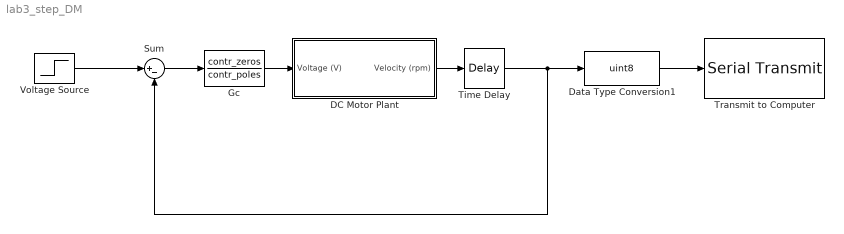
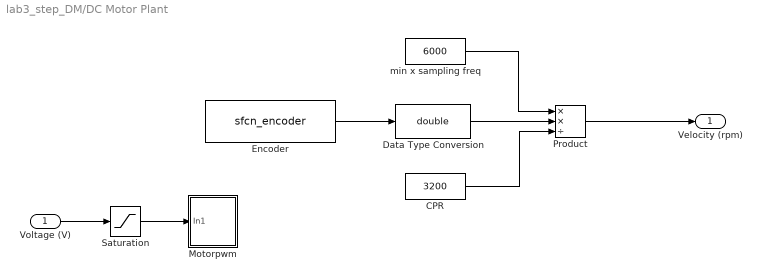
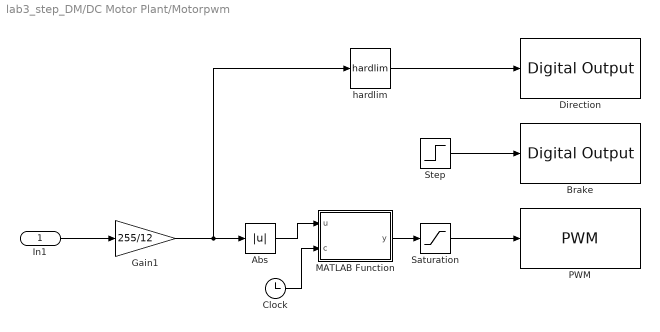
== matlab function lab3_step_DM/DC Motor Plant/Motorpwm/MATLAB Function ==
function y = fcn(u,c)
%#codegen
if c<10
    y = u;
else
    y=0;
end

/*
 * Academic License - for use in teaching, academic research, and meeting
 * course requirements at degree granting institutions only.  Not for
 * government, commercial, or other organizational use.
 *
 * File: lab3_step_DM.c
 *
 * Code generated for Simulink model 'lab3_step_DM'.
 *
 * Model version                  : 1.3
 * Simulink Coder version         : 8.11 (R2016b) 25-Aug-2016
 * C/C++ source code generated on : Sat Apr 27 10:52:02 2019
 *
 * Target selection: ert.tlc
 * Embedded hardware selection: Atmel->AVR
 * Code generation objectives: Unspecified
 * Validation result: Not run
 */

#include "lab3_step_DM.h"
#include "lab3_step_DM_private.h"
#define lab3_step_DM_PinNumber         (8.0)
#define lab3_step_DM_PinNumber_k       (13.0)

/* Block signals (auto storage) */
B_lab3_step_DM_T lab3_step_DM_B;

/* Continuous states */
X_lab3_step_DM_T lab3_step_DM_X;

/* Block states (auto storage) */
DW_lab3_step_DM_T lab3_step_DM_DW;

/* Real-time model */
RT_MODEL_lab3_step_DM_T lab3_step_DM_M_;
RT_MODEL_lab3_step_DM_T *const lab3_step_DM_M = &lab3_step_DM_M_;

/*
 * Time delay interpolation routine
 *
 * The linear interpolation is performed using the formula:
 *
 *          (t2 - tMinusDelay)         (tMinusDelay - t1)
 * u(t)  =  ----------------- * u1  +  ------------------- * u2
 *              (t2 - t1)                  (t2 - t1)
 */
real_T rt_TDelayInterpolate(
  real_T tMinusDelay,                  /* tMinusDelay = currentSimTime - delay */
  real_T tStart,
  real_T *tBuf,
  real_T *uBuf,
  int_T bufSz,
  int_T *lastIdx,
  int_T oldestIdx,
  int_T newIdx,
  real_T initOutput,
  boolean_T discrete,
  boolean_T minorStepAndTAtLastMajorOutput)
{
  int_T i;
  real_T yout, t1, t2, u1, u2;

  /*
   * If there is only one data point in the buffer, this data point must be
   * the t= 0 and tMinusDelay > t0, it ask for something unknown. The best
   * guess if initial output as well
   */
  if ((newIdx == 0) && (oldestIdx ==0 ) && (tMinusDelay > tStart))
    return initOutput;

  /*
   * If tMinusDelay is less than zero, should output initial value
   */
  if (tMinusDelay <= tStart)
    return initOutput;

  /* For fixed buffer extrapolation:
   * if tMinusDelay is small than the time at oldestIdx, if discrete, output
   * tailptr value,  else use tailptr and tailptr+1 value to extrapolate
   * It is also for fixed buffer. Note: The same condition can happen for transport delay block where
   * use tStart and and t[tail] other than using t[tail] and t[tail+1].
   * See below
   */
  if ((tMinusDelay <= tBuf[oldestIdx] ) ) {
    if (discrete) {
      return(uBuf[oldestIdx]);
    } else {
      int_T tempIdx= oldestIdx + 1;
      if (oldestIdx == bufSz-1)
        tempIdx = 0;
      t1= tBuf[oldestIdx];
      t2= tBuf[tempIdx];
      u1= uBuf[oldestIdx];
      u2= uBuf[tempIdx];
      if (t2 == t1) {
        if (tMinusDelay >= t2) {
          yout = u2;
        } else {
          yout = u1;
        }
      } else {
        real_T f1 = (t2-tMinusDelay) / (t2-t1);
        real_T f2 = 1.0 - f1;

        /*
         * Use Lagrange's interpolation formula.  Exact outputs at t1, t2.
         */
        yout = f1*u1 + f2*u2;
      }

      return yout;
    }
  }

  /*
   * When block does not have direct feedthrough, we use the table of
   * values to extrapolate off the end of the table for delays that are less
   * than 0 (less then step size).  This is not completely accurate.  The
   * chain of events is as follows for a given time t.  Major output - look
   * in table.  Update - add entry to table.  Now, if we call the output at
   * time t again, there is a new entry in the table. For very small delays,
   * this means that we will have a different answer from the previous call
   * to the output fcn at the same time t.  The following code prevents this
   * from happening.
   */
  if (minorStepAndTAtLastMajorOutput) {
    /* pretend that the new entry has not been added to table */
    if (newIdx != 0) {
      if (*lastIdx == newIdx) {
        (*lastIdx)--;
      }

      newIdx--;
    } else {
      if (*lastIdx == newIdx) {
        *lastIdx = bufSz-1;
      }

      newIdx = bufSz - 1;
    }
  }

  i = *lastIdx;
  if (tBuf[i] < tMinusDelay) {
    /* Look forward starting at last index */
    while (tBuf[i] < tMinusDelay) {
      /* May occur if the delay is less than step-size - extrapolate */
      if (i == newIdx)
        break;
      i = ( i < (bufSz-1) ) ? (i+1) : 0;/* move through buffer */
    }
  } else {
    /*
     * Look backwards starting at last index which can happen when the
     * delay time increases.
     */
    while (tBuf[i] >= tMinusDelay) {
      /*
       * Due to the entry condition at top of function, we
       * should never hit the end.
       */
      i = (i > 0) ? i-1 : (bufSz-1);   /* move through buffer */
    }

    i = ( i < (bufSz-1) ) ? (i+1) : 0;
  }

  *lastIdx = i;
  if (discrete) {
    /*
     * tempEps = 128 * eps;
     * localEps = max(tempEps, tempEps*fabs(tBuf[i]))/2;
     */
    double tempEps = (DBL_EPSILON) * 128.0;
    double localEps = tempEps * fabs(tBuf[i]);
    if (tempEps > localEps) {
      localEps = tempEps;
    }

    localEps = localEps / 2.0;
    if (tMinusDelay >= (tBuf[i] - localEps)) {
      yout = uBuf[i];
    } else {
      if (i == 0) {
        yout = uBuf[bufSz-1];
      } else {
        yout = uBuf[i-1];
      }
    }
  } else {
    if (i == 0) {
      t1 = tBuf[bufSz-1];
      u1 = uBuf[bufSz-1];
    } else {
      t1 = tBuf[i-1];
      u1 = uBuf[i-1];
    }

    t2 = tBuf[i];
    u2 = uBuf[i];
    if (t2 == t1) {
      if (tMinusDelay >= t2) {
        yout = u2;
      } else {
        yout = u1;
      }
    } else {
      real_T f1 = (t2-tMinusDelay) / (t2-t1);
      real_T f2 = 1.0 - f1;

      /*
       * Use Lagrange's interpolation formula.  Exact outputs at t1, t2.
       */
      yout = f1*u1 + f2*u2;
    }
  }

  return(yout);
}

/*
 * This function updates continuous states using the ODE3 fixed-step
 * solver algorithm
 */
static void rt_ertODEUpdateContinuousStates(RTWSolverInfo *si )
{
  /* Solver Matrices */
  static const real_T rt_ODE3_A[3] = {
    1.0/2.0, 3.0/4.0, 1.0
  };

  static const real_T rt_ODE3_B[3][3] = {
    { 1.0/2.0, 0.0, 0.0 },

    { 0.0, 3.0/4.0, 0.0 },

    { 2.0/9.0, 1.0/3.0, 4.0/9.0 }
  };

  time_T t = rtsiGetT(si);
  time_T tnew = rtsiGetSolverStopTime(si);
  time_T h = rtsiGetStepSize(si);
  real_T *x = rtsiGetContStates(si);
  ODE3_IntgData *id = (ODE3_IntgData *)rtsiGetSolverData(si);
  real_T *y = id->y;
  real_T *f0 = id->f[0];
  real_T *f1 = id->f[1];
  real_T *f2 = id->f[2];
  real_T hB[3];
  int_T i;
  int_T nXc = 1;
  rtsiSetSimTimeStep(si,MINOR_TIME_STEP);

  /* Save the state values at time t in y, we'll use x as ynew. */
  (void) memcpy(y, x,
                (uint_T)nXc*sizeof(real_T));

  /* Assumes that rtsiSetT and ModelOutputs are up-to-date */
  /* f0 = f(t,y) */
  rtsiSetdX(si, f0);
  lab3_step_DM_derivatives();

  /* f(:,2) = feval(odefile, t + hA(1), y + f*hB(:,1), args(:)(*)); */
  hB[0] = h * rt_ODE3_B[0][0];
  for (i = 0; i < nXc; i++) {
    x[i] = y[i] + (f0[i]*hB[0]);
  }

  rtsiSetT(si, t + h*rt_ODE3_A[0]);
  rtsiSetdX(si, f1);
  lab3_step_DM_step();
  lab3_step_DM_derivatives();

  /* f(:,3) = feval(odefile, t + hA(2), y + f*hB(:,2), args(:)(*)); */
  for (i = 0; i <= 1; i++) {
    hB[i] = h * rt_ODE3_B[1][i];
  }

  for (i = 0; i < nXc; i++) {
    x[i] = y[i] + (f0[i]*hB[0] + f1[i]*hB[1]);
  }

  rtsiSetT(si, t + h*rt_ODE3_A[1]);
  rtsiSetdX(si, f2);
  lab3_step_DM_step();
  lab3_step_DM_derivatives();

  /* tnew = t + hA(3);
     ynew = y + f*hB(:,3); */
  for (i = 0; i <= 2; i++) {
    hB[i] = h * rt_ODE3_B[2][i];
  }

  for (i = 0; i < nXc; i++) {
    x[i] = y[i] + (f0[i]*hB[0] + f1[i]*hB[1] + f2[i]*hB[2]);
  }

  rtsiSetT(si, tnew);
  rtsiSetSimTimeStep(si,MAJOR_TIME_STEP);
}

real_T rt_roundd_snf(real_T u)
{
  real_T y;
  if (fabs(u) < 4.503599627370496E+15) {
    if (u >= 0.5) {
      y = floor(u + 0.5);
    } else if (u > -0.5) {
      y = u * 0.0;
    } else {
      y = ceil(u - 0.5);
    }
  } else {
    y = u;
  }

  return y;
}

/* Model step function */
void lab3_step_DM_step(void)
{
  /* local block i/o variables */
  real_T rtb_Gain1;
  int16_T k;
  uint8_T dataIn;
  real_T rtb_y;
  boolean_T exitg1;
  if (rtmIsMajorTimeStep(lab3_step_DM_M)) {
    /* set solver stop time */
    rtsiSetSolverStopTime(&lab3_step_DM_M->solverInfo,
                          ((lab3_step_DM_M->Timing.clockTick0+1)*
      lab3_step_DM_M->Timing.stepSize0));
  }                                    /* end MajorTimeStep */

  /* Update absolute time of base rate at minor time step */
  if (rtmIsMinorTimeStep(lab3_step_DM_M)) {
    lab3_step_DM_M->Timing.t[0] = rtsiGetT(&lab3_step_DM_M->solverInfo);
  }

  /* TransportDelay: '<Root>/Time Delay' */
  {
    real_T **uBuffer = (real_T**)&lab3_step_DM_DW.TimeDelay_PWORK.TUbufferPtrs[0];
    real_T **tBuffer = (real_T**)&lab3_step_DM_DW.TimeDelay_PWORK.TUbufferPtrs[1];
    real_T simTime = lab3_step_DM_M->Timing.t[0];
    real_T tMinusDelay = simTime - lab3_step_DM_P.TimeDelay_Delay;
    rtb_Gain1 = rt_TDelayInterpolate(
      tMinusDelay,
      0.0,
      *tBuffer,
      *uBuffer,
      lab3_step_DM_DW.TimeDelay_IWORK.CircularBufSize,
      &lab3_step_DM_DW.TimeDelay_IWORK.Last,
      lab3_step_DM_DW.TimeDelay_IWORK.Tail,
      lab3_step_DM_DW.TimeDelay_IWORK.Head,
      lab3_step_DM_P.TimeDelay_InitOutput,
      1,
      0);
  }

  /* Start for MATLABSystem: '<Root>/Transmit to Computer' incorporates:
   *  MATLABSystem: '<Root>/Transmit to Computer'
   */
  k = 0;
  exitg1 = false;
  while ((!exitg1) && (k < 8)) {
    if (lab3_step_DM_DW.obj.inputVarSize.f1[k] != 1UL) {
      for (k = 0; k < 8; k++) {
        lab3_step_DM_DW.obj.inputVarSize.f1[k] = 1UL;
      }

      exitg1 = true;
    } else {
      k++;
    }
  }

  /* DataTypeConversion: '<Root>/Data Type Conversion1' */
  rtb_y = rt_roundd_snf(rtb_Gain1);
  if (rtIsNaN(rtb_y) || rtIsInf(rtb_y)) {
    rtb_y = 0.0;
  } else {
    rtb_y = fmod(rtb_y, 256.0);
  }

  /* Start for MATLABSystem: '<Root>/Transmit to Computer' incorporates:
   *  DataTypeConversion: '<Root>/Data Type Conversion1'
   *  MATLABSystem: '<Root>/Transmit to Computer'
   */
  dataIn = (uint8_T)(rtb_y < 0.0 ? (int16_T)(uint8_T)-(int8_T)(uint8_T)-rtb_y :
                     (int16_T)(uint8_T)rtb_y);
  MW_Serial_write(lab3_step_DM_DW.obj.port, &dataIn, 1.0,
                  lab3_step_DM_DW.obj.dataSizeInBytes);
  if (rtmIsMajorTimeStep(lab3_step_DM_M)) {
    /* S-Function (sfcn_encoder): '<S1>/Encoder' */
    sfcn_encoder_Outputs_wrapper( &lab3_step_DM_B.Encoder,
      &lab3_step_DM_DW.Encoder_DSTATE, &lab3_step_DM_P.Encoder_P1, 1,
      &lab3_step_DM_P.Encoder_P2, 1, &lab3_step_DM_P.Encoder_P3, 1);

    /* Product: '<S1>/Product' incorporates:
     *  Constant: '<S1>/CPR'
     *  Constant: '<S1>/min x sampling freq'
     *  DataTypeConversion: '<S1>/Data Type Conversion'
     */
    lab3_step_DM_B.Product = lab3_step_DM_P.minxsamplingfreq_Value * (real_T)
      lab3_step_DM_B.Encoder / lab3_step_DM_P.CPR_Value;

    /* Step: '<Root>/Voltage Source' */
    if (((lab3_step_DM_M->Timing.clockTick1) * 0.01) <
        lab3_step_DM_P.VoltageSource_Time) {
      lab3_step_DM_B.VoltageSource = lab3_step_DM_P.VoltageSource_Y0;
    } else {
      lab3_step_DM_B.VoltageSource = lab3_step_DM_P.VoltageSource_YFinal;
    }

    /* End of Step: '<Root>/Voltage Source' */
  }

  /* Sum: '<Root>/Sum' */
  lab3_step_DM_B.Sum = lab3_step_DM_B.VoltageSource - rtb_Gain1;

  /* TransferFcn: '<Root>/Gc' */
  rtb_Gain1 = 0.0;
  rtb_Gain1 += lab3_step_DM_P.contr_zeros[0] / lab3_step_DM_P.contr_poles[0] *
    lab3_step_DM_B.Sum;
  rtb_Gain1 += (lab3_step_DM_P.contr_zeros[1] / lab3_step_DM_P.contr_poles[0] -
                lab3_step_DM_P.contr_zeros[0] / lab3_step_DM_P.contr_poles[0] *
                (lab3_step_DM_P.contr_poles[1] / lab3_step_DM_P.contr_poles[0]))
    * lab3_step_DM_X.Gc_CSTATE;

  /* Saturate: '<S1>/Saturation' */
  if (rtb_Gain1 > lab3_step_DM_P.Saturation_UpperSat) {
    rtb_y = lab3_step_DM_P.Saturation_UpperSat;
  } else if (rtb_Gain1 < lab3_step_DM_P.Saturation_LowerSat) {
    rtb_y = lab3_step_DM_P.Saturation_LowerSat;
  } else {
    rtb_y = rtb_Gain1;
  }

  /* End of Saturate: '<S1>/Saturation' */

  /* Gain: '<S2>/Gain1' */
  rtb_Gain1 = lab3_step_DM_P.Gain1_Gain * rtb_y;

  /* Switch: '<S7>/Switch' incorporates:
   *  Constant: '<S7>/Constant'
   *  Constant: '<S7>/Constant1'
   */
  if (rtb_Gain1 >= lab3_step_DM_P.Switch_Threshold) {
    rtb_y = lab3_step_DM_P.Constant_Value;
  } else {
    rtb_y = lab3_step_DM_P.Constant1_Value;
  }

  /* End of Switch: '<S7>/Switch' */

  /* DataTypeConversion: '<S4>/Data Type Conversion' */
  if (rtb_y < 256.0) {
    if (rtb_y >= 0.0) {
      dataIn = (uint8_T)rtb_y;
    } else {
      dataIn = 0U;
    }
  } else {
    dataIn = MAX_uint8_T;
  }

  /* End of DataTypeConversion: '<S4>/Data Type Conversion' */

  /* Start for MATLABSystem: '<S4>/Digital Output' incorporates:
   *  MATLABSystem: '<S4>/Digital Output'
   */
  writeDigitalPin((uint8_T)lab3_step_DM_PinNumber_k, dataIn);

  /* MATLAB Function: '<S2>/MATLAB Function' incorporates:
   *  Abs: '<S2>/Abs'
   *  Clock: '<S2>/Clock'
   */
  /* MATLAB Function 'DC Motor Plant/Motorpwm/MATLAB Function': '<S5>:1' */
  /* '<S5>:1:3' if c<10 */
  if (lab3_step_DM_M->Timing.t[0] < 10.0) {
    /* '<S5>:1:4' y = u; */
    rtb_y = fabs(rtb_Gain1);
  } else {
    /* '<S5>:1:5' else */
    /* '<S5>:1:6' y=0; */
    rtb_y = 0.0;
  }

  /* End of MATLAB Function: '<S2>/MATLAB Function' */
  if (rtmIsMajorTimeStep(lab3_step_DM_M)) {
    /* Saturate: '<S2>/Saturation' */
    if (rtb_y > lab3_step_DM_P.Saturation_UpperSat_c) {
      /* DataTypeConversion: '<S6>/Data Type Conversion' */
      rtb_y = lab3_step_DM_P.Saturation_UpperSat_c;
    } else {
      if (rtb_y < lab3_step_DM_P.Saturation_LowerSat_d) {
        /* DataTypeConversion: '<S6>/Data Type Conversion' */
        rtb_y = lab3_step_DM_P.Saturation_LowerSat_d;
      }
    }

    /* End of Saturate: '<S2>/Saturation' */

    /* DataTypeConversion: '<S6>/Data Type Conversion' */
    if (rtb_y < 256.0) {
      if (rtb_y >= 0.0) {
        dataIn = (uint8_T)rtb_y;
      } else {
        dataIn = 0U;
      }
    } else {
      dataIn = MAX_uint8_T;
    }

    /* S-Function (arduinoanalogoutput_sfcn): '<S6>/PWM' */
    MW_analogWrite(lab3_step_DM_P.PWM_pinNumber, dataIn);
  }

  /* Step: '<S2>/Step' */
  if (lab3_step_DM_M->Timing.t[0] < lab3_step_DM_P.Step_Time) {
    rtb_y = lab3_step_DM_P.Step_Y0;
  } else {
    rtb_y = lab3_step_DM_P.Step_YFinal;
  }

  /* End of Step: '<S2>/Step' */

  /* DataTypeConversion: '<S3>/Data Type Conversion' */
  if (rtb_y < 256.0) {
    if (rtb_y >= 0.0) {
      dataIn = (uint8_T)rtb_y;
    } else {
      dataIn = 0U;
    }
  } else {
    dataIn = MAX_uint8_T;
  }

  /* End of DataTypeConversion: '<S3>/Data Type Conversion' */

  /* Start for MATLABSystem: '<S3>/Digital Output' incorporates:
   *  MATLABSystem: '<S3>/Digital Output'
   */
  writeDigitalPin((uint8_T)lab3_step_DM_PinNumber, dataIn);
  if (rtmIsMajorTimeStep(lab3_step_DM_M)) {
    /* Update for TransportDelay: '<Root>/Time Delay' */
    {
      real_T **uBuffer = (real_T**)
        &lab3_step_DM_DW.TimeDelay_PWORK.TUbufferPtrs[0];
      real_T **tBuffer = (real_T**)
        &lab3_step_DM_DW.TimeDelay_PWORK.TUbufferPtrs[1];
      real_T simTime = lab3_step_DM_M->Timing.t[0];
      lab3_step_DM_DW.TimeDelay_IWORK.Head =
        ((lab3_step_DM_DW.TimeDelay_IWORK.Head <
          (lab3_step_DM_DW.TimeDelay_IWORK.CircularBufSize-1)) ?
         (lab3_step_DM_DW.TimeDelay_IWORK.Head+1) : 0);
      if (lab3_step_DM_DW.TimeDelay_IWORK.Head ==
          lab3_step_DM_DW.TimeDelay_IWORK.Tail) {
        lab3_step_DM_DW.TimeDelay_IWORK.Tail =
          ((lab3_step_DM_DW.TimeDelay_IWORK.Tail <
            (lab3_step_DM_DW.TimeDelay_IWORK.CircularBufSize-1)) ?
           (lab3_step_DM_DW.TimeDelay_IWORK.Tail+1) : 0);
      }

      (*tBuffer)[lab3_step_DM_DW.TimeDelay_IWORK.Head] = simTime;
      (*uBuffer)[lab3_step_DM_DW.TimeDelay_IWORK.Head] = lab3_step_DM_B.Product;
    }

    if (rtmIsMajorTimeStep(lab3_step_DM_M)) {
      /* S-Function "sfcn_encoder_wrapper" Block: <S1>/Encoder */
      sfcn_encoder_Update_wrapper( &lab3_step_DM_B.Encoder,
        &lab3_step_DM_DW.Encoder_DSTATE, &lab3_step_DM_P.Encoder_P1, 1,
        &lab3_step_DM_P.Encoder_P2, 1, &lab3_step_DM_P.Encoder_P3, 1);
    }
  }                                    /* end MajorTimeStep */

  if (rtmIsMajorTimeStep(lab3_step_DM_M)) {
    rt_ertODEUpdateContinuousStates(&lab3_step_DM_M->solverInfo);

    /* Update absolute time for base rate */
    /* The "clockTick0" counts the number of times the code of this task has
     * been executed. The absolute time is the multiplication of "clockTick0"
     * and "Timing.stepSize0". Size of "clockTick0" ensures timer will not
     * overflow during the application lifespan selected.
     */
    ++lab3_step_DM_M->Timing.clockTick0;
    lab3_step_DM_M->Timing.t[0] = rtsiGetSolverStopTime
      (&lab3_step_DM_M->solverInfo);

    {
      /* Update absolute timer for sample time: [0.01s, 0.0s] */
      /* The "clockTick1" counts the number of times the code of this task has
       * been executed. The resolution of this integer timer is 0.01, which is the step size
       * of the task. Size of "clockTick1" ensures timer will not overflow during the
       * application lifespan selected.
       */
      lab3_step_DM_M->Timing.clockTick1++;
    }
  }                                    /* end MajorTimeStep */
}
